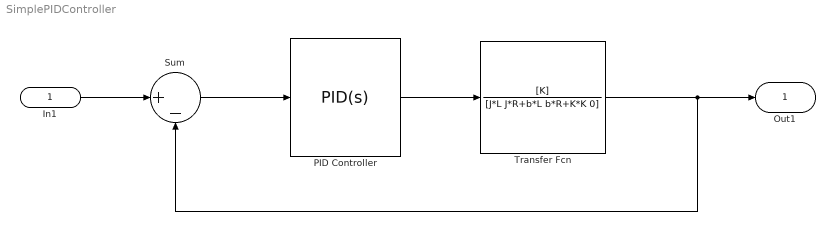
/*
 * SimplePIDController.c
 *
 * Code generation for model "SimplePIDController".
 *
 * Model version              : 1.10
 * Simulink Coder version : 9.2 (R2019b) 18-Jul-2019
 * C source code generated on : Fri Oct 25 17:19:47 2019
 *
 * Target selection: grt.tlc
 * Note: GRT includes extra infrastructure and instrumentation for prototyping
 * Embedded hardware selection: Intel->x86-64 (Windows64)
 * Code generation objective: Debugging
 * Validation result: Not run
 */

#include "SimplePIDController.h"
#include "SimplePIDController_private.h"

/* Block signals (default storage) */
B_SimplePIDController_T SimplePIDController_B;

/* Continuous states */
X_SimplePIDController_T SimplePIDController_X;

/* External inputs (root inport signals with default storage) */
ExtU_SimplePIDController_T SimplePIDController_U;

/* External outputs (root outports fed by signals with default storage) */
ExtY_SimplePIDController_T SimplePIDController_Y;

/* Real-time model */
RT_MODEL_SimplePIDController_T SimplePIDController_M_;
RT_MODEL_SimplePIDController_T *const SimplePIDController_M =
  &SimplePIDController_M_;

/*
 * This function updates continuous states using the ODE3 fixed-step
 * solver algorithm
 */
static void rt_ertODEUpdateContinuousStates(RTWSolverInfo *si )
{
  /* Solver Matrices */
  static const real_T rt_ODE3_A[3] = {
    1.0/2.0, 3.0/4.0, 1.0
  };

  static const real_T rt_ODE3_B[3][3] = {
    { 1.0/2.0, 0.0, 0.0 },

    { 0.0, 3.0/4.0, 0.0 },

    { 2.0/9.0, 1.0/3.0, 4.0/9.0 }
  };

  time_T t = rtsiGetT(si);
  time_T tnew = rtsiGetSolverStopTime(si);
  time_T h = rtsiGetStepSize(si);
  real_T *x = rtsiGetContStates(si);
  ODE3_IntgData *id = (ODE3_IntgData *)rtsiGetSolverData(si);
  real_T *y = id->y;
  real_T *f0 = id->f[0];
  real_T *f1 = id->f[1];
  real_T *f2 = id->f[2];
  real_T hB[3];
  int_T i;
  int_T nXc = 5;
  rtsiSetSimTimeStep(si,MINOR_TIME_STEP);

  /* Save the state values at time t in y, we'll use x as ynew. */
  (void) memcpy(y, x,
                (uint_T)nXc*sizeof(real_T));

  /* Assumes that rtsiSetT and ModelOutputs are up-to-date */
  /* f0 = f(t,y) */
  rtsiSetdX(si, f0);
  SimplePIDController_derivatives();

  /* f(:,2) = feval(odefile, t + hA(1), y + f*hB(:,1), args(:)(*)); */
  hB[0] = h * rt_ODE3_B[0][0];
  for (i = 0; i < nXc; i++) {
    x[i] = y[i] + (f0[i]*hB[0]);
  }

  rtsiSetT(si, t + h*rt_ODE3_A[0]);
  rtsiSetdX(si, f1);
  SimplePIDController_step();
  SimplePIDController_derivatives();

  /* f(:,3) = feval(odefile, t + hA(2), y + f*hB(:,2), args(:)(*)); */
  for (i = 0; i <= 1; i++) {
    hB[i] = h * rt_ODE3_B[1][i];
  }

  for (i = 0; i < nXc; i++) {
    x[i] = y[i] + (f0[i]*hB[0] + f1[i]*hB[1]);
  }

  rtsiSetT(si, t + h*rt_ODE3_A[1]);
  rtsiSetdX(si, f2);
  SimplePIDController_step();
  SimplePIDController_derivatives();

  /* tnew = t + hA(3);
     ynew = y + f*hB(:,3); */
  for (i = 0; i <= 2; i++) {
    hB[i] = h * rt_ODE3_B[2][i];
  }

  for (i = 0; i < nXc; i++) {
    x[i] = y[i] + (f0[i]*hB[0] + f1[i]*hB[1] + f2[i]*hB[2]);
  }

  rtsiSetT(si, tnew);
  rtsiSetSimTimeStep(si,MAJOR_TIME_STEP);
}

/* Model step function */
void SimplePIDController_step(void)
{
  if (rtmIsMajorTimeStep(SimplePIDController_M)) {
    /* set solver stop time */
    if (!(SimplePIDController_M->Timing.clockTick0+1)) {
      rtsiSetSolverStopTime(&SimplePIDController_M->solverInfo,
                            ((SimplePIDController_M->Timing.clockTickH0 + 1) *
        SimplePIDController_M->Timing.stepSize0 * 4294967296.0));
    } else {
      rtsiSetSolverStopTime(&SimplePIDController_M->solverInfo,
                            ((SimplePIDController_M->Timing.clockTick0 + 1) *
        SimplePIDController_M->Timing.stepSize0 +
        SimplePIDController_M->Timing.clockTickH0 *
        SimplePIDController_M->Timing.stepSize0 * 4294967296.0));
    }
  }                                    /* end MajorTimeStep */

  /* Update absolute time of base rate at minor time step */
  if (rtmIsMinorTimeStep(SimplePIDController_M)) {
    SimplePIDController_M->Timing.t[0] = rtsiGetT
      (&SimplePIDController_M->solverInfo);
  }

  /* TransferFcn: '<Root>/Transfer Fcn' */
  SimplePIDController_B.TransferFcn = 0.0;
  SimplePIDController_B.TransferFcn += SimplePIDController_P.TransferFcn_C[0] *
    SimplePIDController_X.TransferFcn_CSTATE[0];
  SimplePIDController_B.TransferFcn += SimplePIDController_P.TransferFcn_C[1] *
    SimplePIDController_X.TransferFcn_CSTATE[1];
  SimplePIDController_B.TransferFcn += SimplePIDController_P.TransferFcn_C[2] *
    SimplePIDController_X.TransferFcn_CSTATE[2];

  /* Outport: '<Root>/Out1' */
  SimplePIDController_Y.Out1 = SimplePIDController_B.TransferFcn;

  /* Sum: '<Root>/Sum' incorporates:
   *  Inport: '<Root>/In1'
   */
  SimplePIDController_B.Sum = SimplePIDController_U.In1 -
    SimplePIDController_B.TransferFcn;

  /* Gain: '<S25>/Derivative Gain' */
  SimplePIDController_B.DerivativeGain = SimplePIDController_P.kd *
    SimplePIDController_B.Sum;

  /* Integrator: '<S26>/Filter' */
  SimplePIDController_B.Filter = SimplePIDController_X.Filter_CSTATE;

  /* Sum: '<S26>/SumD' */
  SimplePIDController_B.SumD = SimplePIDController_B.DerivativeGain -
    SimplePIDController_B.Filter;

  /* Gain: '<S28>/Integral Gain' */
  SimplePIDController_B.IntegralGain = SimplePIDController_P.ki *
    SimplePIDController_B.Sum;

  /* Integrator: '<S31>/Integrator' */
  SimplePIDController_B.Integrator = SimplePIDController_X.Integrator_CSTATE;

  /* Gain: '<S34>/Filter Coefficient' */
  SimplePIDController_B.FilterCoefficient = SimplePIDController_P.kf *
    SimplePIDController_B.SumD;

  /* Gain: '<S36>/Proportional Gain' */
  SimplePIDController_B.ProportionalGain = SimplePIDController_P.kp *
    SimplePIDController_B.Sum;

  /* Sum: '<S40>/Sum' */
  SimplePIDController_B.Sum_d = (SimplePIDController_B.ProportionalGain +
    SimplePIDController_B.Integrator) + SimplePIDController_B.FilterCoefficient;
  if (rtmIsMajorTimeStep(SimplePIDController_M)) {
    rt_ertODEUpdateContinuousStates(&SimplePIDController_M->solverInfo);

    /* Update absolute time for base rate */
    /* The "clockTick0" counts the number of times the code of this task has
     * been executed. The absolute time is the multiplication of "clockTick0"
     * and "Timing.stepSize0". Size of "clockTick0" ensures timer will not
     * overflow during the application lifespan selected.
     * Timer of this task consists of two 32 bit unsigned integers.
     * The two integers represent the low bits Timing.clockTick0 and the high bits
     * Timing.clockTickH0. When the low bit overflows to 0, the high bits increment.
     */
    if (!(++SimplePIDController_M->Timing.clockTick0)) {
      ++SimplePIDController_M->Timing.clockTickH0;
    }

    SimplePIDController_M->Timing.t[0] = rtsiGetSolverStopTime
      (&SimplePIDController_M->solverInfo);

    {
      /* Update absolute timer for sample time: [1.0E-6s, 0.0s] */
      /* The "clockTick1" counts the number of times the code of this task has
       * been executed. The resolution of this integer timer is 1.0E-6, which is the step size
       * of the task. Size of "clockTick1" ensures timer will not overflow during the
       * application lifespan selected.
       * Timer of this task consists of two 32 bit unsigned integers.
       * The two integers represent the low bits Timing.clockTick1 and the high bits
       * Timing.clockTickH1. When the low bit overflows to 0, the high bits increment.
       */
      SimplePIDController_M->Timing.clockTick1++;
      if (!SimplePIDController_M->Timing.clockTick1) {
        SimplePIDController_M->Timing.clockTickH1++;
      }
    }
  }                                    /* end MajorTimeStep */
}
